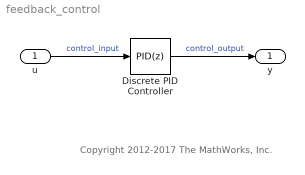
/*
 * File: feedback_control.c
 *
 * Code generated for Simulink model 'feedback_control'.
 *
 * Model version                  : 1.42
 * Simulink Coder version         : 9.3 (R2020a) 18-Nov-2019
 * C/C++ source code generated on : Mon Jan 24 21:00:58 2022
 *
 * Target selection: ert.tlc
 * Embedded hardware selection: 32-bit Generic
 * Code generation objectives: Unspecified
 * Validation result: Not run
 */

#include "feedback_control.h"
#include "feedback_control_private.h"

/* Block states (default storage) */
D_Work_feedback_control feedback_control_DWork;

/* External inputs (root inport signals with default storage) */
ExternalInputs_feedback_control feedback_control_U;

/* External outputs (root outports fed by signals with default storage) */
ExternalOutputs_feedback_contro feedback_control_Y;

/* Real-time model */
RT_MODEL_feedback_control feedback_control_M_;
RT_MODEL_feedback_control *const feedback_control_M = &feedback_control_M_;

/* Model step function */
void feedback_control_step(void)
{
  real_T rtb_FilterCoefficient;

  /* Gain: '<S36>/Filter Coefficient' incorporates:
   *  DiscreteIntegrator: '<S28>/Filter'
   *  Gain: '<S27>/Derivative Gain'
   *  Inport: '<Root>/u'
   *  Sum: '<S28>/SumD'
   */
  rtb_FilterCoefficient = ((feedback_control_P.pid.D *
    feedback_control_U.control_input) - feedback_control_DWork.Filter_DSTATE) *
    feedback_control_P.pid.N;

  /* Outport: '<Root>/y' incorporates:
   *  DiscreteIntegrator: '<S33>/Integrator'
   *  Gain: '<S38>/Proportional Gain'
   *  Inport: '<Root>/u'
   *  Sum: '<S42>/Sum'
   */
  feedback_control_Y.y = ((feedback_control_P.pid.P *
    feedback_control_U.control_input) + feedback_control_DWork.Integrator_DSTATE)
    + rtb_FilterCoefficient;

  /* Update for DiscreteIntegrator: '<S33>/Integrator' incorporates:
   *  Gain: '<S30>/Integral Gain'
   *  Inport: '<Root>/u'
   */
  feedback_control_DWork.Integrator_DSTATE += (feedback_control_P.pid.I *
    feedback_control_U.control_input) * 0.001;

  /* Update for DiscreteIntegrator: '<S28>/Filter' */
  feedback_control_DWork.Filter_DSTATE += 0.001 * rtb_FilterCoefficient;
}
